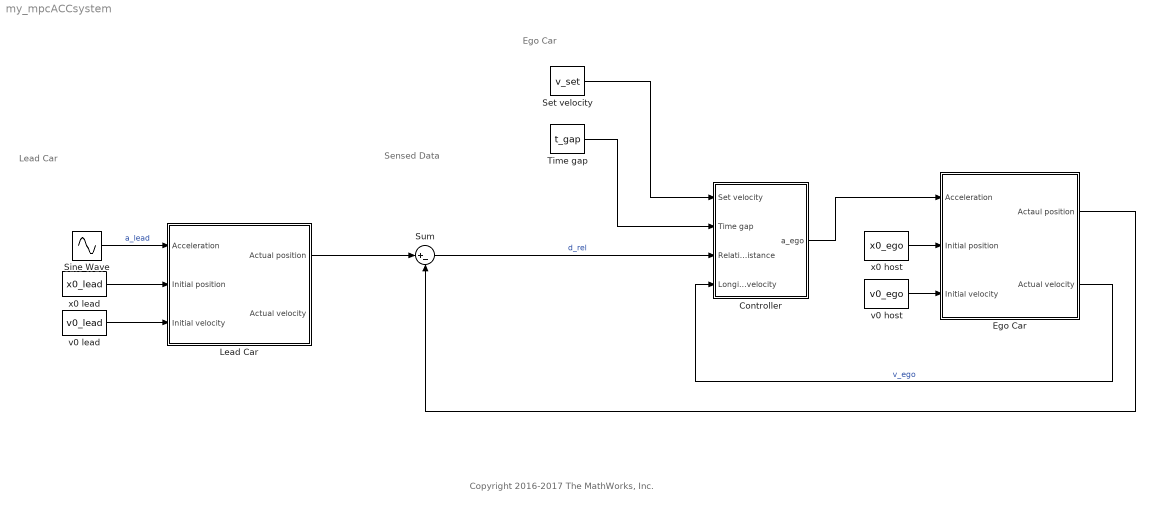
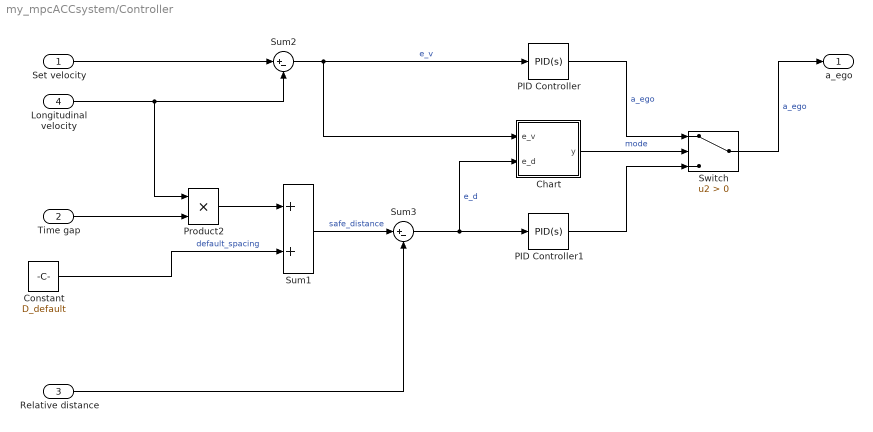
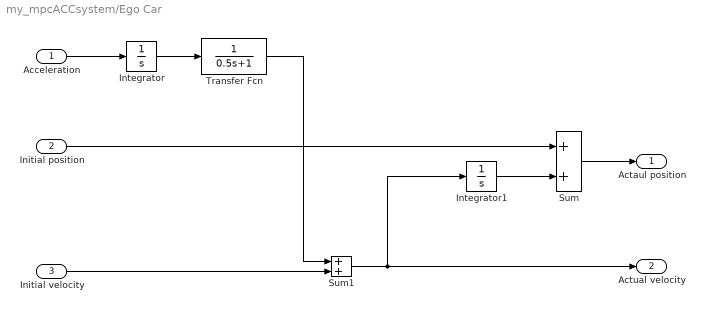
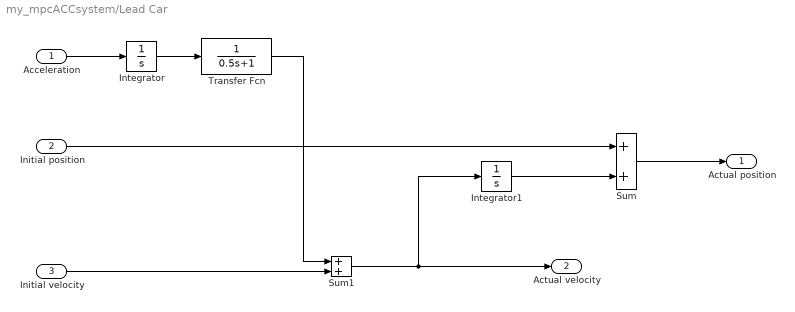
== stateflow chart my_mpcACCsystem/Controller/Chart ==
  state Speed_control
    y=1;
  state Safety_control
    y=-1;
  Speed_control -> Safety_control : [(e_d > 0)]
  (default) -> Speed_control
  Safety_control -> Speed_control : [(e_v<0)]
  data: e_v input; e_d input; y output

/*
 * my_mpcACCsystem.cpp
 *
 * Academic License - for use in teaching, academic research, and meeting
 * course requirements at degree granting institutions only.  Not for
 * government, commercial, or other organizational use.
 *
 * Code generation for model "my_mpcACCsystem".
 *
 * Model version              : 1.39
 * Simulink Coder version : 9.5 (R2021a) 14-Nov-2020
 * C++ source code generated on : Mon Apr 26 19:25:48 2021
 *
 * Target selection: grt.tlc
 * Note: GRT includes extra infrastructure and instrumentation for prototyping
 * Embedded hardware selection: Intel->x86-64 (Linux 64)
 * Code generation objective: Debugging
 * Validation result: Not run
 */

#include "my_mpcACCsystem.h"
#include "my_mpcACCsystem_private.h"

#include <dios.h>
#include <sys/divm.h>

/* Named constants for Chart: '<S1>/Chart' */
const uint8_T my_mpcACCsyst_IN_Safety_control = 1U;
const uint8_T my_mpcACCsyste_IN_Speed_control = 2U;

/*
 * This function updates continuous states using the ODE3 fixed-step
 * solver algorithm
 */
void my_mpcACCsystemModelClass::rt_ertODEUpdateContinuousStates(RTWSolverInfo
  *si )
{
  /* Solver Matrices */
  static const real_T rt_ODE3_A[3] = {
    1.0/2.0, 3.0/4.0, 1.0
  };

  static const real_T rt_ODE3_B[3][3] = {
    { 1.0/2.0, 0.0, 0.0 },

    { 0.0, 3.0/4.0, 0.0 },

    { 2.0/9.0, 1.0/3.0, 4.0/9.0 }
  };

  time_T t = rtsiGetT(si);
  time_T tnew = rtsiGetSolverStopTime(si);
  time_T h = rtsiGetStepSize(si);
  real_T *x = rtsiGetContStates(si);
  ODE3_IntgData *id = static_cast<ODE3_IntgData *>(rtsiGetSolverData(si));
  real_T *y = id->y;
  real_T *f0 = id->f[0];
  real_T *f1 = id->f[1];
  real_T *f2 = id->f[2];
  real_T hB[3];
  int_T i;
  int_T nXc = 10;
  rtsiSetSimTimeStep(si,MINOR_TIME_STEP);

  /* Save the state values at time t in y, we'll use x as ynew. */
  (void) std::memcpy(y, x,
                     static_cast<uint_T>(nXc)*sizeof(real_T));

  /* Assumes that rtsiSetT and ModelOutputs are up-to-date */
  /* f0 = f(t,y) */
  rtsiSetdX(si, f0);
  my_mpcACCsystem_derivatives();

  /* f(:,2) = feval(odefile, t + hA(1), y + f*hB(:,1), args(:)(*)); */
  hB[0] = h * rt_ODE3_B[0][0];
  for (i = 0; i < nXc; i++) {
    x[i] = y[i] + (f0[i]*hB[0]);
  }

  rtsiSetT(si, t + h*rt_ODE3_A[0]);
  rtsiSetdX(si, f1);
  this->step();
  my_mpcACCsystem_derivatives();

  /* f(:,3) = feval(odefile, t + hA(2), y + f*hB(:,2), args(:)(*)); */
  for (i = 0; i <= 1; i++) {
    hB[i] = h * rt_ODE3_B[1][i];
  }

  for (i = 0; i < nXc; i++) {
    x[i] = y[i] + (f0[i]*hB[0] + f1[i]*hB[1]);
  }

  rtsiSetT(si, t + h*rt_ODE3_A[1]);
  rtsiSetdX(si, f2);
  this->step();
  my_mpcACCsystem_derivatives();

  /* tnew = t + hA(3);
     ynew = y + f*hB(:,3); */
  for (i = 0; i <= 2; i++) {
    hB[i] = h * rt_ODE3_B[2][i];
  }

  for (i = 0; i < nXc; i++) {
    x[i] = y[i] + (f0[i]*hB[0] + f1[i]*hB[1] + f2[i]*hB[2]);
  }

  rtsiSetT(si, tnew);
  rtsiSetSimTimeStep(si,MAJOR_TIME_STEP);
}

/* Model step function */
void my_mpcACCsystemModelClass::step()
{ 
  if (rtmIsMajorTimeStep((&my_mpcACCsystem_M))) {
    /* set solver stop time */
    if (!((&my_mpcACCsystem_M)->Timing.clockTick0+1)) {
      rtsiSetSolverStopTime(&(&my_mpcACCsystem_M)->solverInfo,
                            (((&my_mpcACCsystem_M)->Timing.clockTickH0 + 1) *
        (&my_mpcACCsystem_M)->Timing.stepSize0 * 4294967296.0));
    } else {
      rtsiSetSolverStopTime(&(&my_mpcACCsystem_M)->solverInfo,
                            (((&my_mpcACCsystem_M)->Timing.clockTick0 + 1) *
        (&my_mpcACCsystem_M)->Timing.stepSize0 + (&my_mpcACCsystem_M)
        ->Timing.clockTickH0 * (&my_mpcACCsystem_M)->Timing.stepSize0 *
        4294967296.0));
    }
  }                                    /* end MajorTimeStep */

  /* Update absolute time of base rate at minor time step */
  if (rtmIsMinorTimeStep((&my_mpcACCsystem_M))) {
    (&my_mpcACCsystem_M)->Timing.t[0] = rtsiGetT(&(&my_mpcACCsystem_M)
      ->solverInfo);
  }

  {
    real_T u;
    real_T u1;
    real_T u2;

    /* TransferFcn: '<S2>/Transfer Fcn' */
    my_mpcACCsystem_B.TransferFcn = 0.0;
    my_mpcACCsystem_B.TransferFcn += my_mpcACCsystem_P.TransferFcn_C *
      my_mpcACCsystem_X.TransferFcn_CSTATE;

    /* Sum: '<S2>/Sum1' incorporates:
     *  Constant: '<Root>/v0 host'
     */
    my_mpcACCsystem_B.Sum1 = my_mpcACCsystem_B.TransferFcn +
      my_mpcACCsystem_P.v0_ego;

    /* Sum: '<S1>/Sum2' incorporates:
     *  Constant: '<Root>/Set velocity'
     */
    my_mpcACCsystem_B.e_v = my_mpcACCsystem_P.v_set - my_mpcACCsystem_B.Sum1;

    /* Product: '<S1>/Product2' incorporates:
     *  Constant: '<Root>/Time gap'
     */
    my_mpcACCsystem_B.Product2 = my_mpcACCsystem_B.Sum1 *
      my_mpcACCsystem_P.t_gap;

    /* Sum: '<S1>/Sum1' incorporates:
     *  Constant: '<S1>/Constant'
     */
    my_mpcACCsystem_B.safe_distance = my_mpcACCsystem_B.Product2 +
      my_mpcACCsystem_P.D_default;

    /* Integrator: '<S3>/Integrator1' */
    my_mpcACCsystem_B.Integrator1 = my_mpcACCsystem_X.Integrator1_CSTATE;

    /* Sum: '<S3>/Sum' incorporates:
     *  Constant: '<Root>/x0 lead'
     */
    my_mpcACCsystem_B.Sum = my_mpcACCsystem_P.x0_lead +
      my_mpcACCsystem_B.Integrator1;

    /* Integrator: '<S2>/Integrator1' */
    my_mpcACCsystem_B.Integrator1_d = my_mpcACCsystem_X.Integrator1_CSTATE_d;

    /* Sum: '<S2>/Sum' incorporates:
     *  Constant: '<Root>/x0 host'
     */
    my_mpcACCsystem_B.Sum_g = my_mpcACCsystem_P.x0_ego +
      my_mpcACCsystem_B.Integrator1_d;

    /* Sum: '<Root>/Sum' */
    my_mpcACCsystem_B.d_rel = my_mpcACCsystem_B.Sum - my_mpcACCsystem_B.Sum_g;

    /* Sum: '<S1>/Sum3' */
    my_mpcACCsystem_B.e_d = my_mpcACCsystem_B.safe_distance -
      my_mpcACCsystem_B.d_rel;

    AP[safe] = (my_mpcACCsystem_B.e_d <= 0);

    if (rtmIsMajorTimeStep((&my_mpcACCsystem_M))) {
      /* Chart: '<S1>/Chart' */
      if (my_mpcACCsystem_DW.is_active_c3_my_mpcACCsystem == 0U) {
        my_mpcACCsystem_DW.is_active_c3_my_mpcACCsystem = 1U;
        my_mpcACCsystem_DW.is_c3_my_mpcACCsystem =
          my_mpcACCsyste_IN_Speed_control;
        /* :  y=1; */
        my_mpcACCsystem_B.y = 1.0;
      } else if (my_mpcACCsystem_DW.is_c3_my_mpcACCsystem == 1) {
        /* :  sf_internal_predicateOutput = (e_v<0); */
        if (my_mpcACCsystem_B.e_v < 0.0) {
          my_mpcACCsystem_DW.is_c3_my_mpcACCsystem =
            my_mpcACCsyste_IN_Speed_control;

          /* :  y=1; */
          my_mpcACCsystem_B.y = 1.0;
        } else {
          /* :  y=-1; */
          my_mpcACCsystem_B.y = -1.0;
        }

        /* case IN_Speed_control: */
        /* :  sf_internal_predicateOutput = (e_d > 0); */
      } else if (my_mpcACCsystem_B.e_d > 0.0) {
        my_mpcACCsystem_DW.is_c3_my_mpcACCsystem =
          my_mpcACCsyst_IN_Safety_control;
        /* :  y=-1; */
        my_mpcACCsystem_B.y = -1.0;
      } else {
        /* :  y=1; */
        my_mpcACCsystem_B.y = 1.0;
      }

      /* End of Chart: '<S1>/Chart' */
    }

    /* Gain: '<S45>/Proportional Gain' */
    my_mpcACCsystem_B.ProportionalGain = my_mpcACCsystem_P.PIDController_P *
      my_mpcACCsystem_B.e_v;

    /* Integrator: '<S40>/Integrator' */
    my_mpcACCsystem_B.Integrator = my_mpcACCsystem_X.Integrator_CSTATE;

    /* Gain: '<S34>/Derivative Gain' */
    my_mpcACCsystem_B.DerivativeGain = my_mpcACCsystem_P.PIDController_D *
      my_mpcACCsystem_B.e_v;

    /* Integrator: '<S35>/Filter' */
    my_mpcACCsystem_B.Filter = my_mpcACCsystem_X.Filter_CSTATE;

    /* Sum: '<S35>/SumD' */
    my_mpcACCsystem_B.SumD = my_mpcACCsystem_B.DerivativeGain -
      my_mpcACCsystem_B.Filter;

    /* Gain: '<S43>/Filter Coefficient' */
    my_mpcACCsystem_B.FilterCoefficient = my_mpcACCsystem_P.PIDController_N *
      my_mpcACCsystem_B.SumD;

    /* Sum: '<S49>/Sum' */
    my_mpcACCsystem_B.Sum_a = (my_mpcACCsystem_B.ProportionalGain +
      my_mpcACCsystem_B.Integrator) + my_mpcACCsystem_B.FilterCoefficient;

    /* Gain: '<S31>/ZeroGain' */
    my_mpcACCsystem_B.ZeroGain = my_mpcACCsystem_P.ZeroGain_Gain *
      my_mpcACCsystem_B.Sum_a;

    /* DeadZone: '<S33>/DeadZone' */
    if (my_mpcACCsystem_B.Sum_a > my_mpcACCsystem_P.amax_ego) {
      /* DeadZone: '<S33>/DeadZone' */
      my_mpcACCsystem_B.DeadZone = my_mpcACCsystem_B.Sum_a -
        my_mpcACCsystem_P.amax_ego;
    } else if (my_mpcACCsystem_B.Sum_a >= my_mpcACCsystem_P.amin_ego) {
      /* DeadZone: '<S33>/DeadZone' */
      my_mpcACCsystem_B.DeadZone = 0.0;
    } else {
      /* DeadZone: '<S33>/DeadZone' */
      my_mpcACCsystem_B.DeadZone = my_mpcACCsystem_B.Sum_a -
        my_mpcACCsystem_P.amin_ego;
    }

    /* End of DeadZone: '<S33>/DeadZone' */

    /* RelationalOperator: '<S31>/NotEqual' */
    my_mpcACCsystem_B.NotEqual = (my_mpcACCsystem_B.ZeroGain !=
      my_mpcACCsystem_B.DeadZone);

    /* Signum: '<S31>/SignPreSat' */
    u = my_mpcACCsystem_B.DeadZone;
    if (u < 0.0) {
      /* Signum: '<S31>/SignPreSat' */
      my_mpcACCsystem_B.SignPreSat = -1.0;
    } else if (u > 0.0) {
      /* Signum: '<S31>/SignPreSat' */
      my_mpcACCsystem_B.SignPreSat = 1.0;
    } else if (u == 0.0) {
      /* Signum: '<S31>/SignPreSat' */
      my_mpcACCsystem_B.SignPreSat = 0.0;
    } else {
      /* Signum: '<S31>/SignPreSat' */
      my_mpcACCsystem_B.SignPreSat = (rtNaN);
    }

    /* End of Signum: '<S31>/SignPreSat' */

    /* DataTypeConversion: '<S31>/DataTypeConv1' */
    u = std::floor(my_mpcACCsystem_B.SignPreSat);
    if (rtIsNaN(u) || rtIsInf(u)) {
      u = 0.0;
    } else {
      u = std::fmod(u, 256.0);
    }

    /* DataTypeConversion: '<S31>/DataTypeConv1' */
    my_mpcACCsystem_B.DataTypeConv1 = static_cast<int8_T>(u < 0.0 ?
      static_cast<int32_T>(static_cast<int8_T>(-static_cast<int8_T>
      (static_cast<uint8_T>(-u)))) : static_cast<int32_T>(static_cast<int8_T>(
      static_cast<uint8_T>(u))));

    /* Gain: '<S37>/Integral Gain' */
    my_mpcACCsystem_B.IntegralGain = my_mpcACCsystem_P.PIDController_I *
      my_mpcACCsystem_B.e_v;

    /* Signum: '<S31>/SignPreIntegrator' */
    u = my_mpcACCsystem_B.IntegralGain;
    if (u < 0.0) {
      /* Signum: '<S31>/SignPreIntegrator' */
      my_mpcACCsystem_B.SignPreIntegrator = -1.0;
    } else if (u > 0.0) {
      /* Signum: '<S31>/SignPreIntegrator' */
      my_mpcACCsystem_B.SignPreIntegrator = 1.0;
    } else if (u == 0.0) {
      /* Signum: '<S31>/SignPreIntegrator' */
      my_mpcACCsystem_B.SignPreIntegrator = 0.0;
    } else {
      /* Signum: '<S31>/SignPreIntegrator' */
      my_mpcACCsystem_B.SignPreIntegrator = (rtNaN);
    }

    /* End of Signum: '<S31>/SignPreIntegrator' */

    /* DataTypeConversion: '<S31>/DataTypeConv2' */
    u = std::floor(my_mpcACCsystem_B.SignPreIntegrator);
    if (rtIsNaN(u) || rtIsInf(u)) {
      u = 0.0;
    } else {
      u = std::fmod(u, 256.0);
    }

    /* DataTypeConversion: '<S31>/DataTypeConv2' */
    my_mpcACCsystem_B.DataTypeConv2 = static_cast<int8_T>(u < 0.0 ?
      static_cast<int32_T>(static_cast<int8_T>(-static_cast<int8_T>
      (static_cast<uint8_T>(-u)))) : static_cast<int32_T>(static_cast<int8_T>(
      static_cast<uint8_T>(u))));

    /* RelationalOperator: '<S31>/Equal1' */
    my_mpcACCsystem_B.Equal1 = (my_mpcACCsystem_B.DataTypeConv1 ==
      my_mpcACCsystem_B.DataTypeConv2);

    /* Logic: '<S31>/AND3' */
    my_mpcACCsystem_B.AND3 = (my_mpcACCsystem_B.NotEqual &&
      my_mpcACCsystem_B.Equal1);
    if (rtmIsMajorTimeStep((&my_mpcACCsystem_M))) {
      /* Memory: '<S31>/Memory' */
      my_mpcACCsystem_B.Memory = my_mpcACCsystem_DW.Memory_PreviousInput;
    }

    /* Switch: '<S31>/Switch' */
    if (my_mpcACCsystem_B.Memory) {
      /* Switch: '<S31>/Switch' incorporates:
       *  Constant: '<S31>/Constant1'
       */
      my_mpcACCsystem_B.Switch = my_mpcACCsystem_P.Constant1_Value;
    } else {
      /* Switch: '<S31>/Switch' */
      my_mpcACCsystem_B.Switch = my_mpcACCsystem_B.IntegralGain;
    }

    /* End of Switch: '<S31>/Switch' */

    /* Saturate: '<S47>/Saturation' */
    u = my_mpcACCsystem_B.Sum_a;
    u1 = my_mpcACCsystem_P.amin_ego;
    u2 = my_mpcACCsystem_P.amax_ego;
    if (u > u2) {
      /* Saturate: '<S47>/Saturation' */
      my_mpcACCsystem_B.Saturation = u2;
    } else if (u < u1) {
      /* Saturate: '<S47>/Saturation' */
      my_mpcACCsystem_B.Saturation = u1;
    } else {
      /* Saturate: '<S47>/Saturation' */
      my_mpcACCsystem_B.Saturation = u;
    }

    /* End of Saturate: '<S47>/Saturation' */

    /* Gain: '<S95>/Proportional Gain' */
    my_mpcACCsystem_B.ProportionalGain_p = my_mpcACCsystem_P.PIDController1_P *
      my_mpcACCsystem_B.e_d;

    /* Integrator: '<S90>/Integrator' */
    my_mpcACCsystem_B.Integrator_c = my_mpcACCsystem_X.Integrator_CSTATE_j;

    /* Gain: '<S84>/Derivative Gain' */
    my_mpcACCsystem_B.DerivativeGain_i = my_mpcACCsystem_P.PIDController1_D *
      my_mpcACCsystem_B.e_d;

    /* Integrator: '<S85>/Filter' */
    my_mpcACCsystem_B.Filter_p = my_mpcACCsystem_X.Filter_CSTATE_j;

    /* Sum: '<S85>/SumD' */
    my_mpcACCsystem_B.SumD_f = my_mpcACCsystem_B.DerivativeGain_i -
      my_mpcACCsystem_B.Filter_p;

    /* Gain: '<S93>/Filter Coefficient' */
    my_mpcACCsystem_B.FilterCoefficient_d = my_mpcACCsystem_P.PIDController1_N *
      my_mpcACCsystem_B.SumD_f;

    /* Sum: '<S99>/Sum' */
    my_mpcACCsystem_B.Sum_b = (my_mpcACCsystem_B.ProportionalGain_p +
      my_mpcACCsystem_B.Integrator_c) + my_mpcACCsystem_B.FilterCoefficient_d;

    /* Gain: '<S81>/ZeroGain' */
    my_mpcACCsystem_B.ZeroGain_j = my_mpcACCsystem_P.ZeroGain_Gain_i *
      my_mpcACCsystem_B.Sum_b;

    /* DeadZone: '<S83>/DeadZone' */
    if (my_mpcACCsystem_B.Sum_b > my_mpcACCsystem_P.amax_ego) {
      /* DeadZone: '<S83>/DeadZone' */
      my_mpcACCsystem_B.DeadZone_l = my_mpcACCsystem_B.Sum_b -
        my_mpcACCsystem_P.amax_ego;
    } else if (my_mpcACCsystem_B.Sum_b >= my_mpcACCsystem_P.amin_ego) {
      /* DeadZone: '<S83>/DeadZone' */
      my_mpcACCsystem_B.DeadZone_l = 0.0;
    } else {
      /* DeadZone: '<S83>/DeadZone' */
      my_mpcACCsystem_B.DeadZone_l = my_mpcACCsystem_B.Sum_b -
        my_mpcACCsystem_P.amin_ego;
    }

    /* End of DeadZone: '<S83>/DeadZone' */

    /* RelationalOperator: '<S81>/NotEqual' */
    my_mpcACCsystem_B.NotEqual_o = (my_mpcACCsystem_B.ZeroGain_j !=
      my_mpcACCsystem_B.DeadZone_l);

    /* Signum: '<S81>/SignPreSat' */
    u = my_mpcACCsystem_B.DeadZone_l;
    if (u < 0.0) {
      /* Signum: '<S81>/SignPreSat' */
      my_mpcACCsystem_B.SignPreSat_o = -1.0;
    } else if (u > 0.0) {
      /* Signum: '<S81>/SignPreSat' */
      my_mpcACCsystem_B.SignPreSat_o = 1.0;
    } else if (u == 0.0) {
      /* Signum: '<S81>/SignPreSat' */
      my_mpcACCsystem_B.SignPreSat_o = 0.0;
    } else {
      /* Signum: '<S81>/SignPreSat' */
      my_mpcACCsystem_B.SignPreSat_o = (rtNaN);
    }

    /* End of Signum: '<S81>/SignPreSat' */

    /* DataTypeConversion: '<S81>/DataTypeConv1' */
    u = std::floor(my_mpcACCsystem_B.SignPreSat_o);
    if (rtIsNaN(u) || rtIsInf(u)) {
      u = 0.0;
    } else {
      u = std::fmod(u, 256.0);
    }

    /* DataTypeConversion: '<S81>/DataTypeConv1' */
    my_mpcACCsystem_B.DataTypeConv1_b = static_cast<int8_T>(u < 0.0 ?
      static_cast<int32_T>(static_cast<int8_T>(-static_cast<int8_T>
      (static_cast<uint8_T>(-u)))) : static_cast<int32_T>(static_cast<int8_T>(
      static_cast<uint8_T>(u))));

    /* Gain: '<S87>/Integral Gain' */
    my_mpcACCsystem_B.IntegralGain_j = my_mpcACCsystem_P.PIDController1_I *
      my_mpcACCsystem_B.e_d;

    /* Signum: '<S81>/SignPreIntegrator' */
    u = my_mpcACCsystem_B.IntegralGain_j;
    if (u < 0.0) {
      /* Signum: '<S81>/SignPreIntegrator' */
      my_mpcACCsystem_B.SignPreIntegrator_l = -1.0;
    } else if (u > 0.0) {
      /* Signum: '<S81>/SignPreIntegrator' */
      my_mpcACCsystem_B.SignPreIntegrator_l = 1.0;
    } else if (u == 0.0) {
      /* Signum: '<S81>/SignPreIntegrator' */
      my_mpcACCsystem_B.SignPreIntegrator_l = 0.0;
    } else {
      /* Signum: '<S81>/SignPreIntegrator' */
      my_mpcACCsystem_B.SignPreIntegrator_l = (rtNaN);
    }

    /* End of Signum: '<S81>/SignPreIntegrator' */

    /* DataTypeConversion: '<S81>/DataTypeConv2' */
    u = std::floor(my_mpcACCsystem_B.SignPreIntegrator_l);
    if (rtIsNaN(u) || rtIsInf(u)) {
      u = 0.0;
    } else {
      u = std::fmod(u, 256.0);
    }

    /* DataTypeConversion: '<S81>/DataTypeConv2' */
    my_mpcACCsystem_B.DataTypeConv2_l = static_cast<int8_T>(u < 0.0 ?
      static_cast<int32_T>(static_cast<int8_T>(-static_cast<int8_T>
      (static_cast<uint8_T>(-u)))) : static_cast<int32_T>(static_cast<int8_T>(
      static_cast<uint8_T>(u))));

    /* RelationalOperator: '<S81>/Equal1' */
    my_mpcACCsystem_B.Equal1_l = (my_mpcACCsystem_B.DataTypeConv1_b ==
      my_mpcACCsystem_B.DataTypeConv2_l);

    /* Logic: '<S81>/AND3' */
    my_mpcACCsystem_B.AND3_i = (my_mpcACCsystem_B.NotEqual_o &&
      my_mpcACCsystem_B.Equal1_l);
    if (rtmIsMajorTimeStep((&my_mpcACCsystem_M))) {
      /* Memory: '<S81>/Memory' */
      my_mpcACCsystem_B.Memory_j = my_mpcACCsystem_DW.Memory_PreviousInput_d;
    }

    /* Switch: '<S81>/Switch' */
    if (my_mpcACCsystem_B.Memory_j) {
      /* Switch: '<S81>/Switch' incorporates:
       *  Constant: '<S81>/Constant1'
       */
      my_mpcACCsystem_B.Switch_f = my_mpcACCsystem_P.Constant1_Value_k;
    } else {
      /* Switch: '<S81>/Switch' */
      my_mpcACCsystem_B.Switch_f = my_mpcACCsystem_B.IntegralGain_j;
    }

    /* End of Switch: '<S81>/Switch' */

    /* Saturate: '<S97>/Saturation' */
    u = my_mpcACCsystem_B.Sum_b;
    u1 = my_mpcACCsystem_P.amin_ego;
    u2 = my_mpcACCsystem_P.amax_ego;
    if (u > u2) {
      /* Saturate: '<S97>/Saturation' */
      my_mpcACCsystem_B.Saturation_e = u2;
    } else if (u < u1) {
      /* Saturate: '<S97>/Saturation' */
      my_mpcACCsystem_B.Saturation_e = u1;
    } else {
      /* Saturate: '<S97>/Saturation' */
      my_mpcACCsystem_B.Saturation_e = u;
    }

    /* End of Saturate: '<S97>/Saturation' */

    /* Switch: '<S1>/Switch' */
    if (my_mpcACCsystem_B.y > my_mpcACCsystem_P.Switch_Threshold) {
      /* Switch: '<S1>/Switch' */
      my_mpcACCsystem_B.a_ego = my_mpcACCsystem_B.Saturation;
    } else {
      /* Switch: '<S1>/Switch' */
      my_mpcACCsystem_B.a_ego = my_mpcACCsystem_B.Saturation_e;
    }

    /* End of Switch: '<S1>/Switch' */

    /* Integrator: '<S2>/Integrator' */
    my_mpcACCsystem_B.Integrator_b = my_mpcACCsystem_X.Integrator_CSTATE_a;

    /* Integrator: '<S3>/Integrator' */
    my_mpcACCsystem_B.Integrator_d = my_mpcACCsystem_X.Integrator_CSTATE_i;

    /* TransferFcn: '<S3>/Transfer Fcn' */
    my_mpcACCsystem_B.TransferFcn_m = 0.0;
    my_mpcACCsystem_B.TransferFcn_m += my_mpcACCsystem_P.TransferFcn_C_f *
      my_mpcACCsystem_X.TransferFcn_CSTATE_a;

    /* Sum: '<S3>/Sum1' incorporates:
     *  Constant: '<Root>/v0 lead'
     */
    my_mpcACCsystem_B.Sum1_a = my_mpcACCsystem_B.TransferFcn_m +
      my_mpcACCsystem_P.v0_lead;
    if (rtmIsMajorTimeStep((&my_mpcACCsystem_M))) {
      /* Sin: '<Root>/Sine Wave' */
      if (my_mpcACCsystem_DW.systemEnable != 0) {
        my_mpcACCsystem_DW.lastSin = std::sin(my_mpcACCsystem_P.SineWave_Freq *
          ((((&my_mpcACCsystem_M)->Timing.clockTick1+(&my_mpcACCsystem_M)
             ->Timing.clockTickH1* 4294967296.0)) * 0.1));
        my_mpcACCsystem_DW.lastCos = std::cos(my_mpcACCsystem_P.SineWave_Freq *
          ((((&my_mpcACCsystem_M)->Timing.clockTick1+(&my_mpcACCsystem_M)
             ->Timing.clockTickH1* 4294967296.0)) * 0.1));
        my_mpcACCsystem_DW.systemEnable = 0;
      } 

      /* Sin: '<Root>/Sine Wave' */
      my_mpcACCsystem_B.a_lead = ((my_mpcACCsystem_DW.lastSin *
        my_mpcACCsystem_P.SineWave_PCos + my_mpcACCsystem_DW.lastCos *
        my_mpcACCsystem_P.SineWave_PSin) * my_mpcACCsystem_P.SineWave_HCos +
        (my_mpcACCsystem_DW.lastCos * my_mpcACCsystem_P.SineWave_PCos -
         my_mpcACCsystem_DW.lastSin * my_mpcACCsystem_P.SineWave_PSin) *
        my_mpcACCsystem_P.SineWave_Hsin) * my_mpcACCsystem_P.A_acc_lead +
        my_mpcACCsystem_P.SineWave_Bias;
    }
  }

  if (rtmIsMajorTimeStep((&my_mpcACCsystem_M))) {
    /* Matfile logging */
    rt_UpdateTXYLogVars((&my_mpcACCsystem_M)->rtwLogInfo, ((&my_mpcACCsystem_M
      )->Timing.t));
  }                                    /* end MajorTimeStep */

  if (rtmIsMajorTimeStep((&my_mpcACCsystem_M))) {
    real_T HoldCosine;
    real_T HoldSine;
    if (rtmIsMajorTimeStep((&my_mpcACCsystem_M))) {
      /* Update for Memory: '<S31>/Memory' */
      my_mpcACCsystem_DW.Memory_PreviousInput = my_mpcACCsystem_B.AND3;

      /* Update for Memory: '<S81>/Memory' */
      my_mpcACCsystem_DW.Memory_PreviousInput_d = my_mpcACCsystem_B.AND3_i;

      /* Update for Sin: '<Root>/Sine Wave' */
      HoldSine = my_mpcACCsystem_DW.lastSin;
      HoldCosine = my_mpcACCsystem_DW.lastCos;
      my_mpcACCsystem_DW.lastSin = HoldSine * my_mpcACCsystem_P.SineWave_HCos +
        HoldCosine * my_mpcACCsystem_P.SineWave_Hsin;
      my_mpcACCsystem_DW.lastCos = HoldCosine * my_mpcACCsystem_P.SineWave_HCos
        - HoldSine * my_mpcACCsystem_P.SineWave_Hsin;
    }
  }                                    /* end MajorTimeStep */

  if (rtmIsMajorTimeStep((&my_mpcACCsystem_M))) {
    /* signal main to stop simulation */
    {                                  /* Sample time: [0.0s, 0.0s] */
      if ((rtmGetTFinal((&my_mpcACCsystem_M))!=-1) &&
          !((rtmGetTFinal((&my_mpcACCsystem_M))-((((&my_mpcACCsystem_M)
               ->Timing.clockTick1+(&my_mpcACCsystem_M)->Timing.clockTickH1*
               4294967296.0)) * 0.1)) > ((((&my_mpcACCsystem_M)
              ->Timing.clockTick1+(&my_mpcACCsystem_M)->Timing.clockTickH1*
              4294967296.0)) * 0.1) * (DBL_EPSILON))) {
        rtmSetErrorStatus((&my_mpcACCsystem_M), "Simulation finished");
      }
    }

    rt_ertODEUpdateContinuousStates(&(&my_mpcACCsystem_M)->solverInfo);

    /* Update absolute time for base rate */
    /* The "clockTick0" counts the number of times the code of this task has
     * been executed. The absolute time is the multiplication of "clockTick0"
     * and "Timing.stepSize0". Size of "clockTick0" ensures timer will not
     * overflow during the application lifespan selected.
     * Timer of this task consists of two 32 bit unsigned integers.
     * The two integers represent the low bits Timing.clockTick0 and the high bits
     * Timing.clockTickH0. When the low bit overflows to 0, the high bits increment.
     */
    if (!(++(&my_mpcACCsystem_M)->Timing.clockTick0)) {
      ++(&my_mpcACCsystem_M)->Timing.clockTickH0;
    }

    (&my_mpcACCsystem_M)->Timing.t[0] = rtsiGetSolverStopTime
      (&(&my_mpcACCsystem_M)->solverInfo);

    {
      /* Update absolute timer for sample time: [0.1s, 0.0s] */
      /* The "clockTick1" counts the number of times the code of this task has
       * been executed. The resolution of this integer timer is 0.1, which is the step size
       * of the task. Size of "clockTick1" ensures timer will not overflow during the
       * application lifespan selected.
       * Timer of this task consists of two 32 bit unsigned integers.
       * The two integers represent the low bits Timing.clockTick1 and the high bits
       * Timing.clockTickH1. When the low bit overflows to 0, the high bits increment.
       */
      (&my_mpcACCsystem_M)->Timing.clockTick1++;
      if (!(&my_mpcACCsystem_M)->Timing.clockTick1) {
        (&my_mpcACCsystem_M)->Timing.clockTickH1++;
      }
    }
  }                                    /* end MajorTimeStep */
}
